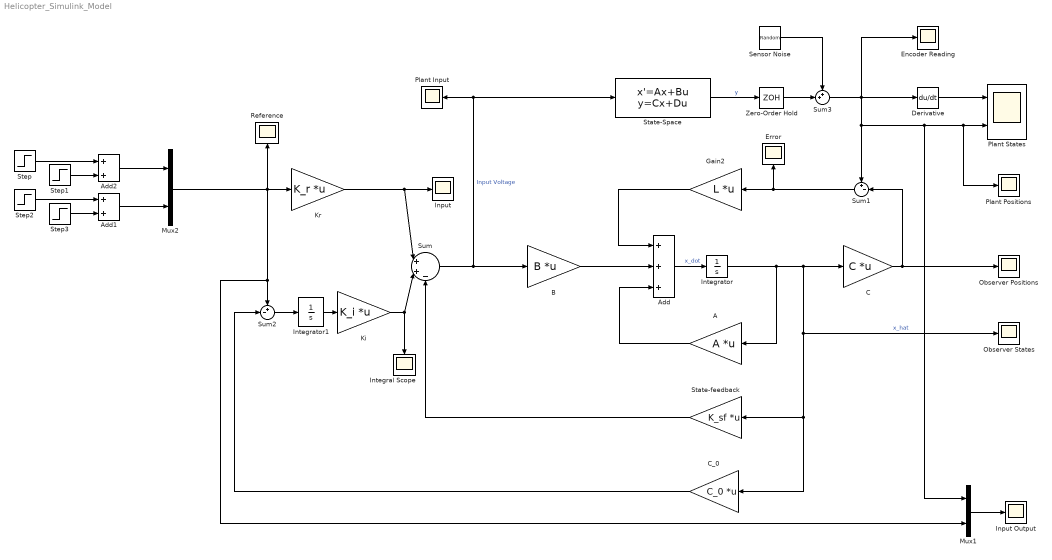
/*
 * Helicopter_Simulink_Model.c
 *
 * Academic License - for use in teaching, academic research, and meeting
 * course requirements at degree granting institutions only.  Not for
 * government, commercial, or other organizational use.
 *
 * Code generation for model "Helicopter_Simulink_Model".
 *
 * Model version              : 1.14
 * Simulink Coder version : 8.8 (R2015a) 09-Feb-2015
 * C source code generated on : Wed Oct 25 14:31:05 2017
 *
 * Target selection: rsim.tlc
 * Note: GRT includes extra infrastructure and instrumentation for prototyping
 * Embedded hardware selection: 32-bit Generic
 * Emulation hardware selection:
 *    Differs from embedded hardware (MATLAB Host)
 * Code generation objectives: Unspecified
 * Validation result: Not run
 */

#include <math.h>
#include "Helicopter_Simulink_Model.h"
#include "Helicopter_Simulink_Model_private.h"
#include "Helicopter_Simulink_Model_dt.h"

/* user code (top of parameter file) */
const int_T gblNumToFiles = 0;
const int_T gblNumFrFiles = 0;
const int_T gblNumFrWksBlocks = 0;
const char *gblSlvrJacPatternFileName =
  "Helicopter_Simulink_Model_rsim_rtw\\Helicopter_Simulink_Model_Jpattern.mat";

/* Root inports information  */
const int_T gblNumRootInportBlks = 0;
const int_T gblNumModelInputs = 0;
extern rtInportTUtable *gblInportTUtables;
extern const char *gblInportFileName;
const int_T gblInportDataTypeIdx[] = { -1 };

const int_T gblInportDims[] = { -1 } ;

const int_T gblInportComplex[] = { -1 };

const int_T gblInportInterpoFlag[] = { -1 };

const int_T gblInportContinuous[] = { -1 };

#include "simstruc.h"
#include "fixedpoint.h"

/* Block signals (auto storage) */
B rtB;

/* Continuous states */
X rtX;

/* Block states (auto storage) */
DW rtDW;

/* Parent Simstruct */
static SimStruct model_S;
SimStruct *const rtS = &model_S;
real_T rt_urand_Upu32_Yd_f_pw_snf(uint32_T *u)
{
  uint32_T lo;
  uint32_T hi;

  /* Uniform random number generator (random number between 0 and 1)

     #define IA      16807                      magic multiplier = 7^5
     #define IM      2147483647                 modulus = 2^31-1
     #define IQ      127773                     IM div IA
     #define IR      2836                       IM modulo IA
     #define S       4.656612875245797e-10      reciprocal of 2^31-1
     test = IA * (seed % IQ) - IR * (seed/IQ)
     seed = test < 0 ? (test + IM) : test
     return (seed*S)
   */
  lo = *u % 127773U * 16807U;
  hi = *u / 127773U * 2836U;
  if (lo < hi) {
    *u = 2147483647U - (hi - lo);
  } else {
    *u = lo - hi;
  }

  return (real_T)*u * 4.6566128752457969E-10;
}

/* Initial conditions for root system: '<Root>' */
void MdlInitialize(void)
{
  uint32_T tseed;
  int32_T r;
  int32_T t;
  real_T tmp;

  /* InitializeConditions for UniformRandomNumber: '<Root>/Sensor Noise' */
  tmp = floor(rtP.SensorNoise_Seed);
  if (rtIsNaN(tmp) || rtIsInf(tmp)) {
    tmp = 0.0;
  } else {
    tmp = fmod(tmp, 4.294967296E+9);
  }

  tseed = tmp < 0.0 ? (uint32_T)-(int32_T)(uint32_T)-tmp : (uint32_T)tmp;
  r = (int32_T)(tseed >> 16U);
  t = (int32_T)(tseed & 32768U);
  tseed = ((((tseed - ((uint32_T)r << 16U)) + t) << 16U) + t) + r;
  if (tseed < 1U) {
    tseed = 1144108930U;
  } else {
    if (tseed > 2147483646U) {
      tseed = 2147483646U;
    }
  }

  rtDW.RandSeed = tseed;
  rtDW.SensorNoise_NextOutput = (rtP.SensorNoise_Maximum -
    rtP.SensorNoise_Minimum) * rt_urand_Upu32_Yd_f_pw_snf(&rtDW.RandSeed) +
    rtP.SensorNoise_Minimum;

  /* End of InitializeConditions for UniformRandomNumber: '<Root>/Sensor Noise' */

  /* InitializeConditions for StateSpace: '<Root>/State-Space' */
  for (r = 0; r < 6; r++) {
    rtX.StateSpace_CSTATE[r] = rtP.StateSpace_X0;
  }

  /* End of InitializeConditions for StateSpace: '<Root>/State-Space' */
  /* InitializeConditions for Integrator: '<Root>/Integrator' */
  {
    int_T i1;
    real_T *xc = &rtX.Integrator_CSTATE[0];
    for (i1=0; i1 < 6; i1++) {
      xc[i1] = rtP.Integrator_IC;
    }
  }

  /* InitializeConditions for Integrator: '<Root>/Integrator1' */
  rtX.Integrator1_CSTATE[0] = rtP.Integrator1_IC;
  rtX.Integrator1_CSTATE[1] = rtP.Integrator1_IC;

  /* InitializeConditions for Derivative: '<Root>/Derivative' */
  rtDW.TimeStampA = (rtInf);
  rtDW.TimeStampB = (rtInf);
}

/* Start for root system: '<Root>' */
void MdlStart(void)
{
  /* Start for Scope: '<Root>/Input Output' */
  {
    RTWLogSignalInfo rt_ScopeSignalInfo;
    static int_T rt_ScopeSignalWidths[] = { 5 };

    static int_T rt_ScopeSignalNumDimensions[] = { 1 };

    static int_T rt_ScopeSignalDimensions[] = { 5 };

    static void *rt_ScopeCurrSigDims[] = { (NULL) };

    static int_T rt_ScopeCurrSigDimsSize[] = { 4 };

    static const char_T *rt_ScopeSignalLabels[] = { "" };

    static char_T rt_ScopeSignalTitles[] = "";
    static int_T rt_ScopeSignalTitleLengths[] = { 0 };

    static boolean_T rt_ScopeSignalIsVarDims[] = { 0 };

    static int_T rt_ScopeSignalPlotStyles[] = { 1, 1, 1, 1, 1 };

    BuiltInDTypeId dTypes[1] = { SS_DOUBLE };

    static char_T rt_ScopeBlockName[] = "Helicopter_Simulink_Model/Input Output";
    rt_ScopeSignalInfo.numSignals = 1;
    rt_ScopeSignalInfo.numCols = rt_ScopeSignalWidths;
    rt_ScopeSignalInfo.numDims = rt_ScopeSignalNumDimensions;
    rt_ScopeSignalInfo.dims = rt_ScopeSignalDimensions;
    rt_ScopeSignalInfo.isVarDims = rt_ScopeSignalIsVarDims;
    rt_ScopeSignalInfo.currSigDims = rt_ScopeCurrSigDims;
    rt_ScopeSignalInfo.currSigDimsSize = rt_ScopeCurrSigDimsSize;
    rt_ScopeSignalInfo.dataTypes = dTypes;
    rt_ScopeSignalInfo.complexSignals = (NULL);
    rt_ScopeSignalInfo.frameData = (NULL);
    rt_ScopeSignalInfo.labels.cptr = rt_ScopeSignalLabels;
    rt_ScopeSignalInfo.titles = rt_ScopeSignalTitles;
    rt_ScopeSignalInfo.titleLengths = rt_ScopeSignalTitleLengths;
    rt_ScopeSignalInfo.plotStyles = rt_ScopeSignalPlotStyles;
    rt_ScopeSignalInfo.blockNames.cptr = (NULL);
    rt_ScopeSignalInfo.stateNames.cptr = (NULL);
    rt_ScopeSignalInfo.crossMdlRef = (NULL);
    rt_ScopeSignalInfo.dataTypeConvert = (NULL);
    rtDW.InputOutput_PWORK.LoggedData = rt_CreateStructLogVar(
      ssGetRTWLogInfo(rtS),
      ssGetTStart(rtS),
      ssGetTFinal(rtS),
      0.0,
      (&ssGetErrorStatus(rtS)),
      "io",
      1,
      0,
      1,
      0.0,
      &rt_ScopeSignalInfo,
      rt_ScopeBlockName);
    if (rtDW.InputOutput_PWORK.LoggedData == (NULL))
      return;
  }

  MdlInitialize();
}

/* Outputs for root system: '<Root>' */
void MdlOutputs(int_T tid)
{
  /* local block i/o variables */
  real_T rtb_x_hat[6];
  real_T rtb_Sum1[3];
  real_T rtb_Derivative[3];
  real_T rtb_Statefeedback[2];
  real_T rtb_C_0[2];
  int_T iy;
  int_T ci;
  real_T (*lastU)[3];
  real_T rtb_SensorNoise;
  real_T tmp[6];
  real_T tmp_0[6];
  real_T tmp_1;
  if (ssIsSampleHit(rtS, 2, 0)) {
    /* UniformRandomNumber: '<Root>/Sensor Noise' */
    rtb_SensorNoise = rtDW.SensorNoise_NextOutput;
  }

  /* StateSpace: '<Root>/State-Space' */
  rtB.y[0] = 0.0;
  rtB.y[1] = 0.0;
  rtB.y[2] = 0.0;
  for (iy = 0; iy < 3; iy++) {
    for (ci = 0; ci < 6; ci++) {
      rtB.y[iy] += rtP.C[ci * 3 + iy] * rtX.StateSpace_CSTATE[ci];
    }
  }

  /* End of StateSpace: '<Root>/State-Space' */
  if (ssIsSampleHit(rtS, 2, 0)) {
    /* Sum: '<Root>/Sum3' incorporates:
     *  ZeroOrderHold: '<Root>/Zero-Order Hold'
     */
    rtB.Sum3[0] = rtb_SensorNoise + rtB.y[0];
    rtB.Sum3[1] = rtb_SensorNoise + rtB.y[1];
    rtB.Sum3[2] = rtb_SensorNoise + rtB.y[2];
  }

  /* Integrator: '<Root>/Integrator' */
  {
    int_T i1;
    real_T *y0 = &rtb_x_hat[0];
    real_T *xc = &rtX.Integrator_CSTATE[0];
    for (i1=0; i1 < 6; i1++) {
      y0[i1] = xc[i1];
    }
  }

  /* Gain: '<Root>/C' */
  for (iy = 0; iy < 3; iy++) {
    rtb_Derivative[iy] = 0.0;
    for (ci = 0; ci < 6; ci++) {
      rtb_Derivative[iy] += rtP.C[3 * ci + iy] * rtb_x_hat[ci];
    }
  }

  /* End of Gain: '<Root>/C' */

  /* Sum: '<Root>/Sum1' */
  rtb_Sum1[0] = rtB.Sum3[0] - rtb_Derivative[0];
  rtb_Sum1[1] = rtB.Sum3[1] - rtb_Derivative[1];
  rtb_Sum1[2] = rtB.Sum3[2] - rtb_Derivative[2];
  if (ssIsSampleHit(rtS, 1, 0)) {
    /* Step: '<Root>/Step' */
    rtDW.Step_MODE = (ssGetTaskTime(rtS,1) >= rtP.Step_Time);

    /* Step: '<Root>/Step1' */
    rtDW.Step1_MODE = (ssGetTaskTime(rtS,1) >= rtP.Step1_Time);

    /* Step: '<Root>/Step' */
    if (rtDW.Step_MODE == 1) {
      rtb_SensorNoise = rtP.Step_YFinal;
    } else {
      rtb_SensorNoise = rtP.Step_Y0;
    }

    /* Step: '<Root>/Step1' */
    if (rtDW.Step1_MODE == 1) {
      tmp_1 = rtP.Step1_YFinal;
    } else {
      tmp_1 = rtP.Step1_Y0;
    }

    /* Sum: '<Root>/Add2' */
    rtB.Add2 = rtb_SensorNoise + tmp_1;

    /* Step: '<Root>/Step2' */
    rtDW.Step2_MODE = (ssGetTaskTime(rtS,1) >= rtP.Step2_Time);

    /* Step: '<Root>/Step3' */
    rtDW.Step3_MODE = (ssGetTaskTime(rtS,1) >= rtP.Step3_Time);

    /* Step: '<Root>/Step2' */
    if (rtDW.Step2_MODE == 1) {
      rtb_SensorNoise = rtP.Step2_YFinal;
    } else {
      rtb_SensorNoise = rtP.Step2_Y0;
    }

    /* Step: '<Root>/Step3' */
    if (rtDW.Step3_MODE == 1) {
      tmp_1 = rtP.Step3_YFinal;
    } else {
      tmp_1 = rtP.Step3_Y0;
    }

    /* Sum: '<Root>/Add1' */
    rtB.Add1 = rtb_SensorNoise + tmp_1;

    /* Gain: '<Root>/Kr' incorporates:
     *  SignalConversion: '<Root>/TmpSignal ConversionAtKrInport1'
     */
    rtB.Kr[0] = 0.0;
    rtB.Kr[0] += rtP.K_r[0] * rtB.Add2;
    rtB.Kr[0] += rtP.K_r[2] * rtB.Add1;
    rtB.Kr[1] = 0.0;
    rtB.Kr[1] += rtP.K_r[1] * rtB.Add2;
    rtB.Kr[1] += rtP.K_r[3] * rtB.Add1;

    /* Scope: '<Root>/Input Output' */
    if (ssGetLogOutput(rtS)) {
      StructLogVar *svar = (StructLogVar *)rtDW.InputOutput_PWORK.LoggedData;
      LogVar *var = svar->signals.values;

      /* time */
      {
        double locTime = ssGetTaskTime(rtS,1);
        rt_UpdateLogVar((LogVar *)svar->time, &locTime, 0);
      }

      /* signals */
      {
        real_T up0[5];
        up0[0] = rtB.Sum3[0];
        up0[1] = rtB.Sum3[1];
        up0[2] = rtB.Sum3[2];
        up0[3] = rtB.Add2;
        up0[4] = rtB.Add1;
        rt_UpdateLogVar((LogVar *)var, up0, 0);
      }
    }
  }

  /* Integrator: '<Root>/Integrator1'
   *
   * Regarding '<Root>/Integrator1':
   *  Limited Integrator
   */
  if (ssIsMajorTimeStep(rtS)) {
    if (rtX.Integrator1_CSTATE[0] >= rtP.Integrator1_UpperSat ) {
      rtX.Integrator1_CSTATE[0] = rtP.Integrator1_UpperSat;
    } else if (rtX.Integrator1_CSTATE[0] <= (rtP.Integrator1_LowerSat) ) {
      rtX.Integrator1_CSTATE[0] = (rtP.Integrator1_LowerSat);
    }

    if (rtX.Integrator1_CSTATE[1] >= rtP.Integrator1_UpperSat ) {
      rtX.Integrator1_CSTATE[1] = rtP.Integrator1_UpperSat;
    } else if (rtX.Integrator1_CSTATE[1] <= (rtP.Integrator1_LowerSat) ) {
      rtX.Integrator1_CSTATE[1] = (rtP.Integrator1_LowerSat);
    }
  }

  rtb_Statefeedback[0] = rtX.Integrator1_CSTATE[0];
  rtb_Statefeedback[1] = rtX.Integrator1_CSTATE[1];

  /* Gain: '<Root>/Ki' */
  rtb_C_0[0] = 0.0;
  rtb_C_0[0] += rtP.K_i[0] * rtb_Statefeedback[0];
  rtb_C_0[0] += rtP.K_i[2] * rtb_Statefeedback[1];
  rtb_C_0[1] = 0.0;
  rtb_C_0[1] += rtP.K_i[1] * rtb_Statefeedback[0];
  rtb_C_0[1] += rtP.K_i[3] * rtb_Statefeedback[1];

  /* Gain: '<Root>/State-feedback' */
  for (iy = 0; iy < 2; iy++) {
    rtb_Statefeedback[iy] = 0.0;
    for (ci = 0; ci < 6; ci++) {
      rtb_Statefeedback[iy] += rtP.K_sf[(ci << 1) + iy] * rtb_x_hat[ci];
    }
  }

  /* End of Gain: '<Root>/State-feedback' */

  /* Sum: '<Root>/Sum' */
  rtB.InputVoltage[0] = (rtB.Kr[0] + rtb_C_0[0]) - rtb_Statefeedback[0];
  rtB.InputVoltage[1] = (rtB.Kr[1] + rtb_C_0[1]) - rtb_Statefeedback[1];
  if (ssIsSampleHit(rtS, 2, 0)) {
  }

  /* Derivative: '<Root>/Derivative' */
  if ((rtDW.TimeStampA >= ssGetT(rtS)) && (rtDW.TimeStampB >= ssGetT(rtS))) {
    rtb_Derivative[0] = 0.0;
    rtb_Derivative[1] = 0.0;
    rtb_Derivative[2] = 0.0;
  } else {
    rtb_SensorNoise = rtDW.TimeStampA;
    lastU = (real_T (*)[3])rtDW.LastUAtTimeA;
    if (rtDW.TimeStampA < rtDW.TimeStampB) {
      if (rtDW.TimeStampB < ssGetT(rtS)) {
        rtb_SensorNoise = rtDW.TimeStampB;
        lastU = (real_T (*)[3])rtDW.LastUAtTimeB;
      }
    } else {
      if (rtDW.TimeStampA >= ssGetT(rtS)) {
        rtb_SensorNoise = rtDW.TimeStampB;
        lastU = (real_T (*)[3])rtDW.LastUAtTimeB;
      }
    }

    rtb_SensorNoise = ssGetT(rtS) - rtb_SensorNoise;
    rtb_Derivative[0] = (rtB.Sum3[0] - (*lastU)[0]) / rtb_SensorNoise;
    rtb_Derivative[1] = (rtB.Sum3[1] - (*lastU)[1]) / rtb_SensorNoise;
    rtb_Derivative[2] = (rtB.Sum3[2] - (*lastU)[2]) / rtb_SensorNoise;
  }

  /* End of Derivative: '<Root>/Derivative' */
  if (ssIsSampleHit(rtS, 1, 0)) {
  }

  for (iy = 0; iy < 6; iy++) {
    /* Gain: '<Root>/Gain2' incorporates:
     *  Sum: '<Root>/Add'
     */
    tmp[iy] = rtP.L[iy + 12] * rtb_Sum1[2] + (rtP.L[iy + 6] * rtb_Sum1[1] +
      rtP.L[iy] * rtb_Sum1[0]);

    /* Gain: '<Root>/B' incorporates:
     *  Sum: '<Root>/Add'
     */
    tmp_0[iy] = rtP.B[iy + 6] * rtB.InputVoltage[1] + rtP.B[iy] *
      rtB.InputVoltage[0];
  }

  /* Sum: '<Root>/Add' incorporates:
   *  Gain: '<Root>/A'
   */
  for (iy = 0; iy < 6; iy++) {
    rtb_SensorNoise = 0.0;
    for (ci = 0; ci < 6; ci++) {
      rtb_SensorNoise += rtP.A[6 * ci + iy] * rtb_x_hat[ci];
    }

    rtB.x_dot[iy] = (tmp[iy] + tmp_0[iy]) + rtb_SensorNoise;
  }

  /* Gain: '<Root>/C_0' */
  for (iy = 0; iy < 2; iy++) {
    rtb_C_0[iy] = 0.0;
    for (ci = 0; ci < 6; ci++) {
      rtb_C_0[iy] += rtP.C_0[(ci << 1) + iy] * rtb_x_hat[ci];
    }
  }

  /* End of Gain: '<Root>/C_0' */

  /* Sum: '<Root>/Sum2' */
  rtB.Sum2[0] = rtB.Add2 - rtb_C_0[0];
  rtB.Sum2[1] = rtB.Add1 - rtb_C_0[1];
  UNUSED_PARAMETER(tid);
}

/* Update for root system: '<Root>' */
void MdlUpdate(int_T tid)
{
  real_T (*lastU)[3];
  if (ssIsSampleHit(rtS, 2, 0)) {
    /* Update for UniformRandomNumber: '<Root>/Sensor Noise' */
    rtDW.SensorNoise_NextOutput = (rtP.SensorNoise_Maximum -
      rtP.SensorNoise_Minimum) * rt_urand_Upu32_Yd_f_pw_snf(&rtDW.RandSeed) +
      rtP.SensorNoise_Minimum;
  }

  /* Update for Integrator: '<Root>/Integrator1' */
  {
    enum { INTG_NORMAL, INTG_LEAVING_UPPER_SAT, INTG_LEAVING_LOWER_SAT,
      INTG_UPPER_SAT, INTG_LOWER_SAT };

    if (rtX.Integrator1_CSTATE[0] == rtP.Integrator1_UpperSat) {
      switch (rtDW.Integrator1_MODE[0]) {
       case INTG_UPPER_SAT:
        if (rtB.Sum2[0] < 0.0) {
          ssSetSolverNeedsReset(rtS);
          rtDW.Integrator1_MODE[0] = INTG_LEAVING_UPPER_SAT;
        }
        break;

       case INTG_LEAVING_UPPER_SAT:
        if (rtB.Sum2[0] >= 0.0) {
          rtDW.Integrator1_MODE[0] = INTG_UPPER_SAT;
          ssSetSolverNeedsReset(rtS);
        }
        break;

       default:
        ssSetSolverNeedsReset(rtS);
        if (rtB.Sum2[0] < 0.0) {
          rtDW.Integrator1_MODE[0] = INTG_LEAVING_UPPER_SAT;
        } else {
          rtDW.Integrator1_MODE[0] = INTG_UPPER_SAT;
        }
        break;
      }
    } else if (rtX.Integrator1_CSTATE[0] == (rtP.Integrator1_LowerSat)) {
      switch (rtDW.Integrator1_MODE[0]) {
       case INTG_LOWER_SAT:
        if (rtB.Sum2[0] > 0.0) {
          ssSetSolverNeedsReset(rtS);
          rtDW.Integrator1_MODE[0] = INTG_LEAVING_LOWER_SAT;
        }
        break;

       case INTG_LEAVING_LOWER_SAT:
        if (rtB.Sum2[0] <= 0.0) {
          rtDW.Integrator1_MODE[0] = INTG_LOWER_SAT;
          ssSetSolverNeedsReset(rtS);
        }
        break;

       default:
        ssSetSolverNeedsReset(rtS);
        if (rtB.Sum2[0] > 0.0) {
          rtDW.Integrator1_MODE[0] = INTG_LEAVING_LOWER_SAT;
        } else {
          rtDW.Integrator1_MODE[0] = INTG_LOWER_SAT;
        }
        break;
      }
    } else {
      rtDW.Integrator1_MODE[0] = INTG_NORMAL;
    }

    if (rtX.Integrator1_CSTATE[1] == rtP.Integrator1_UpperSat) {
      switch (rtDW.Integrator1_MODE[1]) {
       case INTG_UPPER_SAT:
        if (rtB.Sum2[1] < 0.0) {
          ssSetSolverNeedsReset(rtS);
          rtDW.Integrator1_MODE[1] = INTG_LEAVING_UPPER_SAT;
        }
        break;

       case INTG_LEAVING_UPPER_SAT:
        if (rtB.Sum2[1] >= 0.0) {
          rtDW.Integrator1_MODE[1] = INTG_UPPER_SAT;
          ssSetSolverNeedsReset(rtS);
        }
        break;

       default:
        ssSetSolverNeedsReset(rtS);
        if (rtB.Sum2[1] < 0.0) {
          rtDW.Integrator1_MODE[1] = INTG_LEAVING_UPPER_SAT;
        } else {
          rtDW.Integrator1_MODE[1] = INTG_UPPER_SAT;
        }
        break;
      }
    } else if (rtX.Integrator1_CSTATE[1] == (rtP.Integrator1_LowerSat)) {
      switch (rtDW.Integrator1_MODE[1]) {
       case INTG_LOWER_SAT:
        if (rtB.Sum2[1] > 0.0) {
          ssSetSolverNeedsReset(rtS);
          rtDW.Integrator1_MODE[1] = INTG_LEAVING_LOWER_SAT;
        }
        break;

       case INTG_LEAVING_LOWER_SAT:
        if (rtB.Sum2[1] <= 0.0) {
          rtDW.Integrator1_MODE[1] = INTG_LOWER_SAT;
          ssSetSolverNeedsReset(rtS);
        }
        break;

       default:
        ssSetSolverNeedsReset(rtS);
        if (rtB.Sum2[1] > 0.0) {
          rtDW.Integrator1_MODE[1] = INTG_LEAVING_LOWER_SAT;
        } else {
          rtDW.Integrator1_MODE[1] = INTG_LOWER_SAT;
        }
        break;
      }
    } else {
      rtDW.Integrator1_MODE[1] = INTG_NORMAL;
    }
  }

  /* Update for Derivative: '<Root>/Derivative' */
  if (rtDW.TimeStampA == (rtInf)) {
    rtDW.TimeStampA = ssGetT(rtS);
    lastU = (real_T (*)[3])rtDW.LastUAtTimeA;
  } else if (rtDW.TimeStampB == (rtInf)) {
    rtDW.TimeStampB = ssGetT(rtS);
    lastU = (real_T (*)[3])rtDW.LastUAtTimeB;
  } else if (rtDW.TimeStampA < rtDW.TimeStampB) {
    rtDW.TimeStampA = ssGetT(rtS);
    lastU = (real_T (*)[3])rtDW.LastUAtTimeA;
  } else {
    rtDW.TimeStampB = ssGetT(rtS);
    lastU = (real_T (*)[3])rtDW.LastUAtTimeB;
  }

  (*lastU)[0] = rtB.Sum3[0];
  (*lastU)[1] = rtB.Sum3[1];
  (*lastU)[2] = rtB.Sum3[2];

  /* End of Update for Derivative: '<Root>/Derivative' */
  UNUSED_PARAMETER(tid);
}
